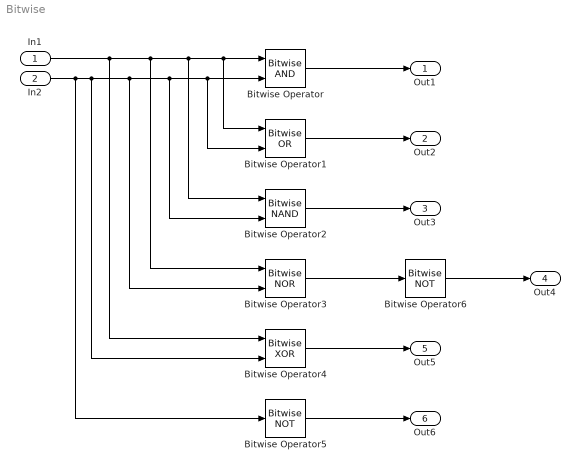
/*
 * File: Bitwise.c
 *
 * Code generated for Simulink model 'Bitwise'.
 *
 * Model version                  : 1.1
 * Simulink Coder version         : 9.5 (R2021a) 14-Nov-2020
 * C/C++ source code generated on : Tue Apr  5 23:04:08 2022
 *
 * Target selection: ert.tlc
 * Embedded hardware selection: Intel->x86-64 (Windows64)
 * Code generation objectives: Unspecified
 * Validation result: Not run
 */

#include "Bitwise.h"
#include "Bitwise_private.h"

/* External inputs (root inport signals with default storage) */
ExtU_Bitwise_T Bitwise_U;

/* External outputs (root outports fed by signals with default storage) */
ExtY_Bitwise_T Bitwise_Y;

/* Real-time model */
static RT_MODEL_Bitwise_T Bitwise_M_;
RT_MODEL_Bitwise_T *const Bitwise_M = &Bitwise_M_;

/* Model step function */
void Bitwise_step(void)
{
  /* Outport: '<Root>/Out1' incorporates:
   *  Inport: '<Root>/In1'
   *  Inport: '<Root>/In2'
   *  S-Function (sfix_bitop): '<Root>/Bitwise Operator'
   *  S-Function (sfix_bitop): '<Root>/Bitwise Operator2'
   */
  Bitwise_Y.Out1 = (uint8_T)(Bitwise_U.In1 & Bitwise_U.In2);

  /* Outport: '<Root>/Out2' incorporates:
   *  Inport: '<Root>/In1'
   *  Inport: '<Root>/In2'
   *  S-Function (sfix_bitop): '<Root>/Bitwise Operator1'
   *  S-Function (sfix_bitop): '<Root>/Bitwise Operator3'
   */
  Bitwise_Y.Out2 = (uint8_T)(Bitwise_U.In1 | Bitwise_U.In2);

  /* Outport: '<Root>/Out3' incorporates:
   *  S-Function (sfix_bitop): '<Root>/Bitwise Operator2'
   */
  Bitwise_Y.Out3 = (uint8_T)~Bitwise_Y.Out1;

  /* Outport: '<Root>/Out4' incorporates:
   *  S-Function (sfix_bitop): '<Root>/Bitwise Operator3'
   *  S-Function (sfix_bitop): '<Root>/Bitwise Operator6'
   */
  Bitwise_Y.Out4 = (uint8_T)~(uint8_T)~Bitwise_Y.Out2;

  /* Outport: '<Root>/Out5' incorporates:
   *  Inport: '<Root>/In1'
   *  Inport: '<Root>/In2'
   *  S-Function (sfix_bitop): '<Root>/Bitwise Operator4'
   */
  Bitwise_Y.Out5 = (uint8_T)(Bitwise_U.In1 ^ Bitwise_U.In2);

  /* Outport: '<Root>/Out6' incorporates:
   *  Inport: '<Root>/In2'
   *  S-Function (sfix_bitop): '<Root>/Bitwise Operator5'
   */
  Bitwise_Y.Out6 = (uint8_T)~Bitwise_U.In2;
}
